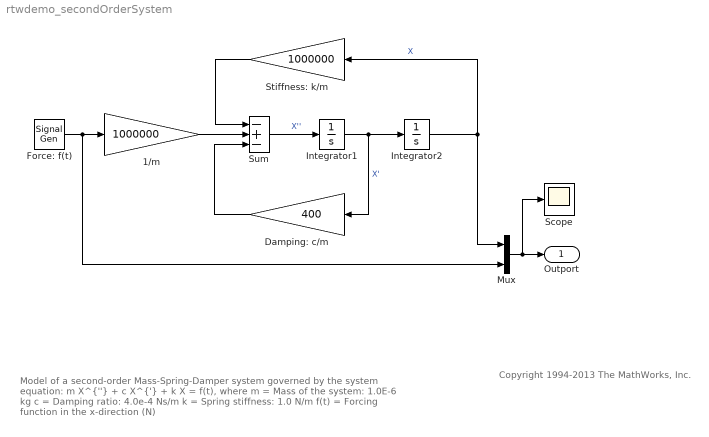
/*
 * rtwdemo_secondOrderSystem.c
 *
 * Academic License - for use in teaching, academic research, and meeting
 * course requirements at degree granting institutions only.  Not for
 * government, commercial, or other organizational use.
 *
 * Code generation for model "rtwdemo_secondOrderSystem".
 *
 * Model version              : 1.45
 * Simulink Coder version : 8.13 (R2017b) 24-Jul-2017
 * C source code generated on : Tue Jan  9 17:57:01 2024
 *
 * Target selection: grt.tlc
 * Note: GRT includes extra infrastructure and instrumentation for prototyping
 * Embedded hardware selection: Intel->x86-64 (Windows64)
 * Code generation objective: Execution efficiency
 * Validation result: Passed (10), Warnings (2), Error (0)
 */

#include "rtwdemo_secondOrderSystem.h"
#include "rtwdemo_secondOrderSystem_private.h"

/* Block signals (auto storage) */
B_rtwdemo_secondOrderSystem_T rtwdemo_secondOrderSystem_B;

/* Continuous states */
X_rtwdemo_secondOrderSystem_T rtwdemo_secondOrderSystem_X;

/* Block states (auto storage) */
DW_rtwdemo_secondOrderSystem_T rtwdemo_secondOrderSystem_DW;

/* External outputs (root outports fed by signals with auto storage) */
ExtY_rtwdemo_secondOrderSyste_T rtwdemo_secondOrderSystem_Y;

/* Real-time model */
RT_MODEL_rtwdemo_secondOrderS_T rtwdemo_secondOrderSystem_M_;
RT_MODEL_rtwdemo_secondOrderS_T *const rtwdemo_secondOrderSystem_M =
  &rtwdemo_secondOrderSystem_M_;

/*
 * This function updates continuous states using the ODE3 fixed-step
 * solver algorithm
 */
static void rt_ertODEUpdateContinuousStates(RTWSolverInfo *si )
{
  /* Solver Matrices */
  static const real_T rt_ODE3_A[3] = {
    1.0/2.0, 3.0/4.0, 1.0
  };

  static const real_T rt_ODE3_B[3][3] = {
    { 1.0/2.0, 0.0, 0.0 },

    { 0.0, 3.0/4.0, 0.0 },

    { 2.0/9.0, 1.0/3.0, 4.0/9.0 }
  };

  time_T t = rtsiGetT(si);
  time_T tnew = rtsiGetSolverStopTime(si);
  time_T h = rtsiGetStepSize(si);
  real_T *x = rtsiGetContStates(si);
  ODE3_IntgData *id = (ODE3_IntgData *)rtsiGetSolverData(si);
  real_T *y = id->y;
  real_T *f0 = id->f[0];
  real_T *f1 = id->f[1];
  real_T *f2 = id->f[2];
  real_T hB[3];
  int_T i;
  int_T nXc = 2;
  rtsiSetSimTimeStep(si,MINOR_TIME_STEP);

  /* Save the state values at time t in y, we'll use x as ynew. */
  (void) memcpy(y, x,
                (uint_T)nXc*sizeof(real_T));

  /* Assumes that rtsiSetT and ModelOutputs are up-to-date */
  /* f0 = f(t,y) */
  rtsiSetdX(si, f0);
  rtwdemo_secondOrderSystem_derivatives();

  /* f(:,2) = feval(odefile, t + hA(1), y + f*hB(:,1), args(:)(*)); */
  hB[0] = h * rt_ODE3_B[0][0];
  for (i = 0; i < nXc; i++) {
    x[i] = y[i] + (f0[i]*hB[0]);
  }

  rtsiSetT(si, t + h*rt_ODE3_A[0]);
  rtsiSetdX(si, f1);
  rtwdemo_secondOrderSystem_step();
  rtwdemo_secondOrderSystem_derivatives();

  /* f(:,3) = feval(odefile, t + hA(2), y + f*hB(:,2), args(:)(*)); */
  for (i = 0; i <= 1; i++) {
    hB[i] = h * rt_ODE3_B[1][i];
  }

  for (i = 0; i < nXc; i++) {
    x[i] = y[i] + (f0[i]*hB[0] + f1[i]*hB[1]);
  }

  rtsiSetT(si, t + h*rt_ODE3_A[1]);
  rtsiSetdX(si, f2);
  rtwdemo_secondOrderSystem_step();
  rtwdemo_secondOrderSystem_derivatives();

  /* tnew = t + hA(3);
     ynew = y + f*hB(:,3); */
  for (i = 0; i <= 2; i++) {
    hB[i] = h * rt_ODE3_B[2][i];
  }

  for (i = 0; i < nXc; i++) {
    x[i] = y[i] + (f0[i]*hB[0] + f1[i]*hB[1] + f2[i]*hB[2]);
  }

  rtsiSetT(si, tnew);
  rtsiSetSimTimeStep(si,MAJOR_TIME_STEP);
}

/* Model step function */
void rtwdemo_secondOrderSystem_step(void)
{
  real_T temp;
  if (rtmIsMajorTimeStep(rtwdemo_secondOrderSystem_M)) {
    /* set solver stop time */
    if (!(rtwdemo_secondOrderSystem_M->Timing.clockTick0+1)) {
      rtsiSetSolverStopTime(&rtwdemo_secondOrderSystem_M->solverInfo,
                            ((rtwdemo_secondOrderSystem_M->Timing.clockTickH0 +
        1) * rtwdemo_secondOrderSystem_M->Timing.stepSize0 * 4294967296.0));
    } else {
      rtsiSetSolverStopTime(&rtwdemo_secondOrderSystem_M->solverInfo,
                            ((rtwdemo_secondOrderSystem_M->Timing.clockTick0 + 1)
        * rtwdemo_secondOrderSystem_M->Timing.stepSize0 +
        rtwdemo_secondOrderSystem_M->Timing.clockTickH0 *
        rtwdemo_secondOrderSystem_M->Timing.stepSize0 * 4294967296.0));
    }
  }                                    /* end MajorTimeStep */

  /* Update absolute time of base rate at minor time step */
  if (rtmIsMinorTimeStep(rtwdemo_secondOrderSystem_M)) {
    rtwdemo_secondOrderSystem_M->Timing.t[0] = rtsiGetT
      (&rtwdemo_secondOrderSystem_M->solverInfo);
  }

  /* Integrator: '<Root>/Integrator2' */
  rtwdemo_secondOrderSystem_B.X = rtwdemo_secondOrderSystem_X.Integrator2_CSTATE;

  /* SignalGenerator: '<Root>/Force: f(t)' */
  temp = 20.0 * rtwdemo_secondOrderSystem_M->Timing.t[0];
  if (temp - floor(temp) >= 0.5) {
    rtwdemo_secondOrderSystem_B.Forceft = 4.0;
  } else {
    rtwdemo_secondOrderSystem_B.Forceft = -4.0;
  }

  /* End of SignalGenerator: '<Root>/Force: f(t)' */

  /* Outport: '<Root>/Outport' */
  rtwdemo_secondOrderSystem_Y.Outport[0] = rtwdemo_secondOrderSystem_B.X;
  rtwdemo_secondOrderSystem_Y.Outport[1] = rtwdemo_secondOrderSystem_B.Forceft;
  if (rtmIsMajorTimeStep(rtwdemo_secondOrderSystem_M)) {
  }

  /* Integrator: '<Root>/Integrator1' */
  rtwdemo_secondOrderSystem_B.X_h =
    rtwdemo_secondOrderSystem_X.Integrator1_CSTATE;

  /* Sum: '<Root>/Sum' incorporates:
   *  Gain: '<Root>/1//m'
   *  Gain: '<Root>/Damping: c//m'
   *  Gain: '<Root>/Stiffness: k//m'
   */
  rtwdemo_secondOrderSystem_B.X_p = (1.0E+6 *
    rtwdemo_secondOrderSystem_B.Forceft - 1.0E+6 * rtwdemo_secondOrderSystem_B.X)
    - 400.0 * rtwdemo_secondOrderSystem_B.X_h;
  if (rtmIsMajorTimeStep(rtwdemo_secondOrderSystem_M)) {
    /* Matfile logging */
    rt_UpdateTXYLogVars(rtwdemo_secondOrderSystem_M->rtwLogInfo,
                        (rtwdemo_secondOrderSystem_M->Timing.t));
  }                                    /* end MajorTimeStep */

  if (rtmIsMajorTimeStep(rtwdemo_secondOrderSystem_M)) {
    /* signal main to stop simulation */
    {                                  /* Sample time: [0.0s, 0.0s] */
      if ((rtmGetTFinal(rtwdemo_secondOrderSystem_M)!=-1) &&
          !((rtmGetTFinal(rtwdemo_secondOrderSystem_M)-
             (((rtwdemo_secondOrderSystem_M->Timing.clockTick1+
                rtwdemo_secondOrderSystem_M->Timing.clockTickH1* 4294967296.0)) *
              0.001)) > (((rtwdemo_secondOrderSystem_M->Timing.clockTick1+
                           rtwdemo_secondOrderSystem_M->Timing.clockTickH1*
                           4294967296.0)) * 0.001) * (DBL_EPSILON))) {
        rtmSetErrorStatus(rtwdemo_secondOrderSystem_M, "Simulation finished");
      }
    }

    rt_ertODEUpdateContinuousStates(&rtwdemo_secondOrderSystem_M->solverInfo);

    /* Update absolute time for base rate */
    /* The "clockTick0" counts the number of times the code of this task has
     * been executed. The absolute time is the multiplication of "clockTick0"
     * and "Timing.stepSize0". Size of "clockTick0" ensures timer will not
     * overflow during the application lifespan selected.
     * Timer of this task consists of two 32 bit unsigned integers.
     * The two integers represent the low bits Timing.clockTick0 and the high bits
     * Timing.clockTickH0. When the low bit overflows to 0, the high bits increment.
     */
    if (!(++rtwdemo_secondOrderSystem_M->Timing.clockTick0)) {
      ++rtwdemo_secondOrderSystem_M->Timing.clockTickH0;
    }

    rtwdemo_secondOrderSystem_M->Timing.t[0] = rtsiGetSolverStopTime
      (&rtwdemo_secondOrderSystem_M->solverInfo);

    {
      /* Update absolute timer for sample time: [0.001s, 0.0s] */
      /* The "clockTick1" counts the number of times the code of this task has
       * been executed. The resolution of this integer timer is 0.001, which is the step size
       * of the task. Size of "clockTick1" ensures timer will not overflow during the
       * application lifespan selected.
       * Timer of this task consists of two 32 bit unsigned integers.
       * The two integers represent the low bits Timing.clockTick1 and the high bits
       * Timing.clockTickH1. When the low bit overflows to 0, the high bits increment.
       */
      rtwdemo_secondOrderSystem_M->Timing.clockTick1++;
      if (!rtwdemo_secondOrderSystem_M->Timing.clockTick1) {
        rtwdemo_secondOrderSystem_M->Timing.clockTickH1++;
      }
    }
  }                                    /* end MajorTimeStep */
}
